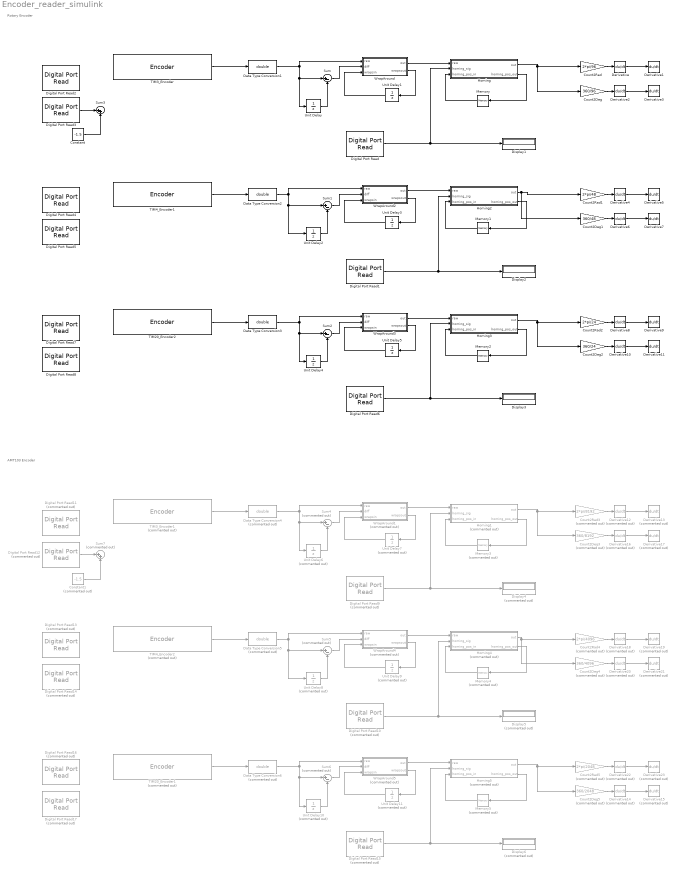
== matlab function Encoder_reader_simulink/Homing ==
function [out,homing_pos_out]= fcn(raw, homing_sig,homing_pos_in)

if homing_sig == 1
    homing_pos_out = raw;
    out = 0;
else
    homing_pos_out = homing_pos_in;
    out = raw - homing_pos_in;
end

== matlab function Encoder_reader_simulink/WrapAround1 ==
function [out,wrapsout] = fcn(raw, diff, wrapsin)

capcity = 61439;

if diff >= capcity/2 %max
    out = -raw+(wrapsin+1)*capcity;
    wrapsout = wrapsin-1;
elseif diff <= -capcity/2 %min
    out = raw+(wrapsin+1)*capcity;
    wrapsout = wrapsin+1;
else
    out = raw+wrapsin*capcity;
    wrapsout = wrapsin;

end

== matlab function Encoder_reader_simulink/WrapAround4 ==
function [out,wrapsout] = fcn(raw, diff, wrapsin)

capcity = 61439;

if diff >= capcity/2 %max
    out = -raw+(wrapsin+1)*capcity;
    wrapsout = wrapsin-1;
elseif diff <= -capcity/2 %min
    out = raw+(wrapsin+1)*capcity;
    wrapsout = wrapsin+1;
else
    out = raw+wrapsin*capcity;
    wrapsout = wrapsin;

end

== matlab function Encoder_reader_simulink/WrapAround5 ==
function [out,wrapsout] = fcn(raw, diff, wrapsin)

capcity = 61439;

if diff >= capcity/2 %max
    out = -raw+(wrapsin+1)*capcity;
    wrapsout = wrapsin-1;
elseif diff <= -capcity/2 %min
    out = raw+(wrapsin+1)*capcity;
    wrapsout = wrapsin+1;
else
    out = raw+wrapsin*capcity;
    wrapsout = wrapsin;

end

== matlab function Encoder_reader_simulink/WrapAround ==
function [out,wrapsout] = fcn(raw, diff, wrapsin)

capcity = 61439;

if diff >= capcity/2 %max
    out = -raw+(wrapsin+1)*capcity;
    wrapsout = wrapsin-1;
elseif diff <= -capcity/2 %min
    out = raw+(wrapsin+1)*capcity;
    wrapsout = wrapsin+1;
else
    out = raw+wrapsin*capcity;
    wrapsout = wrapsin;

end

== matlab function Encoder_reader_simulink/Homing2 ==
function [out,homing_pos_out]= fcn(raw, homing_sig,homing_pos_in)

if homing_sig == 1
    homing_pos_out = raw;
    out = 0;
else
    homing_pos_out = homing_pos_in;
    out = raw - homing_pos_in;
end

== matlab function Encoder_reader_simulink/WrapAround2 ==
function [out,wrapsout] = fcn(raw, diff, wrapsin)

capcity = 61439;

if diff >= capcity/2 %max
    out = -raw+(wrapsin+1)*capcity;
    wrapsout = wrapsin-1;
elseif diff <= -capcity/2 %min
    out = raw+(wrapsin+1)*capcity;
    wrapsout = wrapsin+1;
else
    out = raw+wrapsin*capcity;
    wrapsout = wrapsin;

end

== matlab function Encoder_reader_simulink/Homing3 ==
function [out,homing_pos_out]= fcn(raw, homing_sig,homing_pos_in)

if homing_sig == 1
    homing_pos_out = raw;
    out = 0;
else
    homing_pos_out = homing_pos_in;
    out = raw - homing_pos_in;
end

== matlab function Encoder_reader_simulink/WrapAround3 ==
function [out,wrapsout] = fcn(raw, diff, wrapsin)

capcity = 61439;

if diff >= capcity/2 %max
    out = -raw+(wrapsin+1)*capcity;
    wrapsout = wrapsin-1;
elseif diff <= -capcity/2 %min
    out = raw+(wrapsin+1)*capcity;
    wrapsout = wrapsin+1;
else
    out = raw+wrapsin*capcity;
    wrapsout = wrapsin;

end

== matlab function Encoder_reader_simulink/Homing1 ==
function [out,homing_pos_out]= fcn(raw, homing_sig,homing_pos_in)

if homing_sig == 1
    homing_pos_out = raw;
    out = 0;
else
    homing_pos_out = homing_pos_in;
    out = raw - homing_pos_in;
end

== matlab function Encoder_reader_simulink/Homing4 ==
function [out,homing_pos_out]= fcn(raw, homing_sig,homing_pos_in)

if homing_sig == 1
    homing_pos_out = raw;
    out = 0;
else
    homing_pos_out = homing_pos_in;
    out = raw - homing_pos_in;
end

== matlab function Encoder_reader_simulink/Homing5 ==
function [out,homing_pos_out]= fcn(raw, homing_sig,homing_pos_in)

if homing_sig == 1
    homing_pos_out = raw;
    out = 0;
else
    homing_pos_out = homing_pos_in;
    out = raw - homing_pos_in;
end

/*
 * Academic License - for use in teaching, academic research, and meeting
 * course requirements at degree granting institutions only.  Not for
 * government, commercial, or other organizational use.
 *
 * File: Encoder_reader_simulink.c
 *
 * Code generated for Simulink model 'Encoder_reader_simulink'.
 *
 * Model version                  : 2.6
 * Simulink Coder version         : 25.1 (R2025a) 21-Nov-2024
 * C/C++ source code generated on : Tue Oct 14 00:03:16 2025
 *
 * Target selection: ert.tlc
 * Embedded hardware selection: ARM Compatible->ARM Cortex-M
 * Code generation objectives: Unspecified
 * Validation result: Not run
 */

#include "Encoder_reader_simulink.h"
#include "rtwtypes.h"
#include "Encoder_reader_simulink_types.h"
#include "Encoder_reader_simulink_private.h"
#include "stm_timer_ll.h"

/* Named constants for MATLAB Function: '<Root>/Homing' */
#define Encoder_reader_simul_CALL_EVENT (-1)

/* Named constants for MATLAB Function: '<Root>/WrapAround' */
#define Encoder_reader_sim_CALL_EVENT_e (-1)

/* Block signals (default storage) */
B_Encoder_reader_simulink_T Encoder_reader_simulink_B;

/* Block states (default storage) */
DW_Encoder_reader_simulink_T Encoder_reader_simulink_DW;

/* Real-time model */
static RT_MODEL_Encoder_reader_simul_T Encoder_reader_simulink_M_;
RT_MODEL_Encoder_reader_simul_T *const Encoder_reader_simulink_M =
  &Encoder_reader_simulink_M_;

/* Forward declaration for local functions */
static void Encoder_read_SystemCore_setup_j(stm32cube_blocks_EncoderBlock_T *obj);
static void Encoder_rea_SystemCore_setup_j2(stm32cube_blocks_EncoderBlock_T *obj);
static void Encoder_reader_SystemCore_setup(stm32cube_blocks_EncoderBlock_T *obj);

/* System initialize for atomic system: */
void Encoder_re_DigitalPortRead_Init(DW_DigitalPortRead_Encoder_re_T *localDW)
{
  /* Start for MATLABSystem: '<S17>/Digital Port Read' */
  localDW->obj.matlabCodegenIsDeleted = false;
  localDW->objisempty = true;
  localDW->obj.isInitialized = 1;
  localDW->obj.isSetupComplete = true;
}

/* Output and update for atomic system: */
void Encoder_reader__DigitalPortRead(B_DigitalPortRead_Encoder_rea_T *localB)
{
  uint32_T pinReadLoc;

  /* MATLABSystem: '<S17>/Digital Port Read' */
  pinReadLoc = LL_GPIO_ReadInputPort(GPIOC);

  /* MATLABSystem: '<S17>/Digital Port Read' */
  localB->DigitalPortRead = ((pinReadLoc & 8192U) != 0U);
}

/* Termination for atomic system: */
void Encoder_re_DigitalPortRead_Term(DW_DigitalPortRead_Encoder_re_T *localDW)
{
  /* Terminate for MATLABSystem: '<S17>/Digital Port Read' */
  if (!localDW->obj.matlabCodegenIsDeleted) {
    localDW->obj.matlabCodegenIsDeleted = true;
  }

  /* End of Terminate for MATLABSystem: '<S17>/Digital Port Read' */
}

/*
 * System initialize for atomic system:
 *    '<Root>/Homing'
 *    '<Root>/Homing2'
 *    '<Root>/Homing3'
 */
void Encoder_reader_simu_Homing_Init(DW_Homing_Encoder_reader_simu_T *localDW)
{
  localDW->sfEvent = Encoder_reader_simul_CALL_EVENT;
}

/*
 * Output and update for atomic system:
 *    '<Root>/Homing'
 *    '<Root>/Homing2'
 *    '<Root>/Homing3'
 */
void Encoder_reader_simulink_Homing(real_T rtu_raw, boolean_T rtu_homing_sig,
  real_T rtu_homing_pos_in, real_T *rty_out, real_T *rty_homing_pos_out,
  DW_Homing_Encoder_reader_simu_T *localDW)
{
  localDW->sfEvent = Encoder_reader_simul_CALL_EVENT;
  if (rtu_homing_sig) {
    *rty_homing_pos_out = rtu_raw;
    *rty_out = 0.0;
  } else {
    *rty_homing_pos_out = rtu_homing_pos_in;
    *rty_out = rtu_raw - rtu_homing_pos_in;
  }
}

/*
 * System initialize for atomic system:
 *    '<Root>/WrapAround'
 *    '<Root>/WrapAround2'
 *    '<Root>/WrapAround3'
 */
void Encoder_reader__WrapAround_Init(DW_WrapAround_Encoder_reader__T *localDW)
{
  localDW->sfEvent = Encoder_reader_sim_CALL_EVENT_e;
}

/*
 * Output and update for atomic system:
 *    '<Root>/WrapAround'
 *    '<Root>/WrapAround2'
 *    '<Root>/WrapAround3'
 */
void Encoder_reader_simul_WrapAround(real_T rtu_raw, real_T rtu_diff, real_T
  rtu_wrapsin, real_T *rty_out, real_T *rty_wrapsout,
  DW_WrapAround_Encoder_reader__T *localDW)
{
  localDW->sfEvent = Encoder_reader_sim_CALL_EVENT_e;
  if (rtu_diff >= 30719.5) {
    *rty_out = (rtu_wrapsin + 1.0) * 61439.0 - rtu_raw;
    *rty_wrapsout = rtu_wrapsin - 1.0;
  } else if (rtu_diff <= -30719.5) {
    *rty_out = (rtu_wrapsin + 1.0) * 61439.0 + rtu_raw;
    *rty_wrapsout = rtu_wrapsin + 1.0;
  } else {
    *rty_out = rtu_wrapsin * 61439.0 + rtu_raw;
    *rty_wrapsout = rtu_wrapsin;
  }
}

static void Encoder_read_SystemCore_setup_j(stm32cube_blocks_EncoderBlock_T *obj)
{
  uint8_T ChannelInfo;
  TIM_Type_T b;
  boolean_T isSlaveModeTriggerEnabled;

  /* Start for MATLABSystem: '<Root>/TIM3_Encoder' */
  obj->isInitialized = 1;
  b.PeripheralPtr = TIM3;
  b.isCenterAlignedMode = false;

  /* Start for MATLABSystem: '<Root>/TIM3_Encoder' */
  b.repetitionCounter = 0U;
  obj->TimerHandle = Timer_Handle_Init(&b);
  enableTimerInterrupts(obj->TimerHandle, 0);
  ChannelInfo = ENABLE_CH;

  /* Start for MATLABSystem: '<Root>/TIM3_Encoder' */
  enableTimerChannel1(obj->TimerHandle, ChannelInfo);
  enableTimerChannel2(obj->TimerHandle, ChannelInfo);
  isSlaveModeTriggerEnabled = isSlaveTriggerModeEnabled(obj->TimerHandle);
  if (!isSlaveModeTriggerEnabled) {
    /* Start for MATLABSystem: '<Root>/TIM3_Encoder' */
    enableCounter(obj->TimerHandle, false);
  }

  obj->isSetupComplete = true;
}

static void Encoder_rea_SystemCore_setup_j2(stm32cube_blocks_EncoderBlock_T *obj)
{
  uint8_T ChannelInfo;
  TIM_Type_T b;
  boolean_T isSlaveModeTriggerEnabled;

  /* Start for MATLABSystem: '<Root>/TIM4_Encoder1' */
  obj->isInitialized = 1;
  b.PeripheralPtr = TIM4;
  b.isCenterAlignedMode = false;

  /* Start for MATLABSystem: '<Root>/TIM4_Encoder1' */
  b.repetitionCounter = 0U;
  obj->TimerHandle = Timer_Handle_Init(&b);
  enableTimerInterrupts(obj->TimerHandle, 0);
  ChannelInfo = ENABLE_CH;

  /* Start for MATLABSystem: '<Root>/TIM4_Encoder1' */
  enableTimerChannel1(obj->TimerHandle, ChannelInfo);
  enableTimerChannel2(obj->TimerHandle, ChannelInfo);
  isSlaveModeTriggerEnabled = isSlaveTriggerModeEnabled(obj->TimerHandle);
  if (!isSlaveModeTriggerEnabled) {
    /* Start for MATLABSystem: '<Root>/TIM4_Encoder1' */
    enableCounter(obj->TimerHandle, false);
  }

  obj->isSetupComplete = true;
}

static void Encoder_reader_SystemCore_setup(stm32cube_blocks_EncoderBlock_T *obj)
{
  uint8_T ChannelInfo;
  TIM_Type_T b;
  boolean_T isSlaveModeTriggerEnabled;

  /* Start for MATLABSystem: '<Root>/TIM20_Encoder2' */
  obj->isInitialized = 1;
  b.PeripheralPtr = TIM20;
  b.isCenterAlignedMode = false;

  /* Start for MATLABSystem: '<Root>/TIM20_Encoder2' */
  b.repetitionCounter = 0U;
  obj->TimerHandle = Timer_Handle_Init(&b);
  enableTimerInterrupts(obj->TimerHandle, 0);
  ChannelInfo = ENABLE_CH;

  /* Start for MATLABSystem: '<Root>/TIM20_Encoder2' */
  enableTimerChannel1(obj->TimerHandle, ChannelInfo);
  enableTimerChannel2(obj->TimerHandle, ChannelInfo);
  isSlaveModeTriggerEnabled = isSlaveTriggerModeEnabled(obj->TimerHandle);
  if (!isSlaveModeTriggerEnabled) {
    /* Start for MATLABSystem: '<Root>/TIM20_Encoder2' */
    enableCounter(obj->TimerHandle, false);
  }

  obj->isSetupComplete = true;
}

/* Model step function */
void Encoder_reader_simulink_step(void)
{
  {
    real_T out_b;
    real_T out_d;
    real_T *lastU;
    uint32_T pinReadLoc;

    /* MATLABSystem: '<S23>/Digital Port Read' */
    pinReadLoc = LL_GPIO_ReadInputPort(GPIOA);

    /* Sum: '<Root>/Sum3' incorporates:
     *  MATLABSystem: '<S23>/Digital Port Read'
     * */
    Encoder_reader_simulink_B.Sum3 = (real_T)((pinReadLoc & 64U) != 0U) - 1.5;
    Encoder_reader__DigitalPortRead(&Encoder_reader_simulink_B.DigitalPortRead);

    /* MATLABSystem: '<Root>/TIM3_Encoder' */
    Encoder_reader_simulink_B.TIM3_Encoder = getTimerCounterValueForG4
      (Encoder_reader_simulink_DW.obj_pe.TimerHandle, false, NULL);

    /* DataTypeConversion: '<Root>/Data Type Conversion1' */
    Encoder_reader_simulink_B.DataTypeConversion1 =
      Encoder_reader_simulink_B.TIM3_Encoder;

    /* MATLAB Function: '<Root>/WrapAround' incorporates:
     *  Sum: '<Root>/Sum'
     *  UnitDelay: '<Root>/Unit Delay'
     *  UnitDelay: '<Root>/Unit Delay1'
     */
    Encoder_reader_simul_WrapAround
      (Encoder_reader_simulink_B.DataTypeConversion1,
       Encoder_reader_simulink_B.DataTypeConversion1 -
       Encoder_reader_simulink_DW.UnitDelay_DSTATE,
       Encoder_reader_simulink_DW.UnitDelay1_DSTATE, &out_d,
       &Encoder_reader_simulink_B.wrapsout_d,
       &Encoder_reader_simulink_DW.sf_WrapAround);

    /* MATLAB Function: '<Root>/Homing' incorporates:
     *  Memory: '<Root>/Memory'
     */
    Encoder_reader_simulink_Homing(out_d,
      Encoder_reader_simulink_B.DigitalPortRead.DigitalPortRead,
      Encoder_reader_simulink_DW.Memory_PreviousInput,
      &Encoder_reader_simulink_B.out_m,
      &Encoder_reader_simulink_B.homing_pos_out_g4,
      &Encoder_reader_simulink_DW.sf_Homing);

    /* Gain: '<Root>/Count2Deg' */
    Encoder_reader_simulink_B.Count2Deg = 3.75 * Encoder_reader_simulink_B.out_m;

    /* Derivative: '<Root>/Derivative2' incorporates:
     *  Derivative: '<Root>/Derivative'
     *  Derivative: '<Root>/Derivative1'
     *  Derivative: '<Root>/Derivative10'
     *  Derivative: '<Root>/Derivative11'
     *  Derivative: '<Root>/Derivative3'
     *  Derivative: '<Root>/Derivative4'
     *  Derivative: '<Root>/Derivative5'
     *  Derivative: '<Root>/Derivative6'
     *  Derivative: '<Root>/Derivative7'
     *  Derivative: '<Root>/Derivative8'
     *  Derivative: '<Root>/Derivative9'
     */
    out_d = Encoder_reader_simulink_M->Timing.t[0];
    if ((Encoder_reader_simulink_DW.TimeStampA >= out_d) &&
        (Encoder_reader_simulink_DW.TimeStampB >= out_d)) {
      /* Derivative: '<Root>/Derivative2' */
      Encoder_reader_simulink_B.Derivative2 = 0.0;
    } else {
      out_b = Encoder_reader_simulink_DW.TimeStampA;
      lastU = &Encoder_reader_simulink_DW.LastUAtTimeA;
      if (Encoder_reader_simulink_DW.TimeStampA <
          Encoder_reader_simulink_DW.TimeStampB) {
        if (Encoder_reader_simulink_DW.TimeStampB < out_d) {
          out_b = Encoder_reader_simulink_DW.TimeStampB;
          lastU = &Encoder_reader_simulink_DW.LastUAtTimeB;
        }
      } else if (Encoder_reader_simulink_DW.TimeStampA >= out_d) {
        out_b = Encoder_reader_simulink_DW.TimeStampB;
        lastU = &Encoder_reader_simulink_DW.LastUAtTimeB;
      }

      /* Derivative: '<Root>/Derivative2' */
      Encoder_reader_simulink_B.Derivative2 =
        (Encoder_reader_simulink_B.Count2Deg - *lastU) / (out_d - out_b);
    }

    /* End of Derivative: '<Root>/Derivative2' */
    /* Derivative: '<Root>/Derivative3' */
    if ((Encoder_reader_simulink_DW.TimeStampA_b >= out_d) &&
        (Encoder_reader_simulink_DW.TimeStampB_b >= out_d)) {
      /* Derivative: '<Root>/Derivative3' */
      Encoder_reader_simulink_B.Derivative3 = 0.0;
    } else {
      out_b = Encoder_reader_simulink_DW.TimeStampA_b;
      lastU = &Encoder_reader_simulink_DW.LastUAtTimeA_d;
      if (Encoder_reader_simulink_DW.TimeStampA_b <
          Encoder_reader_simulink_DW.TimeStampB_b) {
        if (Encoder_reader_simulink_DW.TimeStampB_b < out_d) {
          out_b = Encoder_reader_simulink_DW.TimeStampB_b;
          lastU = &Encoder_reader_simulink_DW.LastUAtTimeB_l;
        }
      } else if (Encoder_reader_simulink_DW.TimeStampA_b >= out_d) {
        out_b = Encoder_reader_simulink_DW.TimeStampB_b;
        lastU = &Encoder_reader_simulink_DW.LastUAtTimeB_l;
      }

      /* Derivative: '<Root>/Derivative3' */
      Encoder_reader_simulink_B.Derivative3 =
        (Encoder_reader_simulink_B.Derivative2 - *lastU) / (out_d - out_b);
    }

    /* Gain: '<Root>/Count2Rad' */
    Encoder_reader_simulink_B.Count2Rad = 0.065449846949787352 *
      Encoder_reader_simulink_B.out_m;

    /* Derivative: '<Root>/Derivative' */
    if ((Encoder_reader_simulink_DW.TimeStampA_o >= out_d) &&
        (Encoder_reader_simulink_DW.TimeStampB_l >= out_d)) {
      /* Derivative: '<Root>/Derivative' */
      Encoder_reader_simulink_B.Derivative = 0.0;
    } else {
      out_b = Encoder_reader_simulink_DW.TimeStampA_o;
      lastU = &Encoder_reader_simulink_DW.LastUAtTimeA_e;
      if (Encoder_reader_simulink_DW.TimeStampA_o <
          Encoder_reader_simulink_DW.TimeStampB_l) {
        if (Encoder_reader_simulink_DW.TimeStampB_l < out_d) {
          out_b = Encoder_reader_simulink_DW.TimeStampB_l;
          lastU = &Encoder_reader_simulink_DW.LastUAtTimeB_h;
        }
      } else if (Encoder_reader_simulink_DW.TimeStampA_o >= out_d) {
        out_b = Encoder_reader_simulink_DW.TimeStampB_l;
        lastU = &Encoder_reader_simulink_DW.LastUAtTimeB_h;
      }

      /* Derivative: '<Root>/Derivative' */
      Encoder_reader_simulink_B.Derivative =
        (Encoder_reader_simulink_B.Count2Rad - *lastU) / (out_d - out_b);
    }

    /* Derivative: '<Root>/Derivative1' */
    if ((Encoder_reader_simulink_DW.TimeStampA_p >= out_d) &&
        (Encoder_reader_simulink_DW.TimeStampB_n >= out_d)) {
      /* Derivative: '<Root>/Derivative1' */
      Encoder_reader_simulink_B.Derivative1 = 0.0;
    } else {
      out_b = Encoder_reader_simulink_DW.TimeStampA_p;
      lastU = &Encoder_reader_simulink_DW.LastUAtTimeA_g;
      if (Encoder_reader_simulink_DW.TimeStampA_p <
          Encoder_reader_simulink_DW.TimeStampB_n) {
        if (Encoder_reader_simulink_DW.TimeStampB_n < out_d) {
          out_b = Encoder_reader_simulink_DW.TimeStampB_n;
          lastU = &Encoder_reader_simulink_DW.LastUAtTimeB_c;
        }
      } else if (Encoder_reader_simulink_DW.TimeStampA_p >= out_d) {
        out_b = Encoder_reader_simulink_DW.TimeStampB_n;
        lastU = &Encoder_reader_simulink_DW.LastUAtTimeB_c;
      }

      /* Derivative: '<Root>/Derivative1' */
      Encoder_reader_simulink_B.Derivative1 =
        (Encoder_reader_simulink_B.Derivative - *lastU) / (out_d - out_b);
    }

    Encoder_reader__DigitalPortRead(&Encoder_reader_simulink_B.DigitalPortRead_l);

    /* MATLABSystem: '<Root>/TIM4_Encoder1' */
    Encoder_reader_simulink_B.TIM4_Encoder1 = getTimerCounterValueForG4
      (Encoder_reader_simulink_DW.obj_ng.TimerHandle, false, NULL);

    /* DataTypeConversion: '<Root>/Data Type Conversion2' */
    Encoder_reader_simulink_B.DataTypeConversion2 =
      Encoder_reader_simulink_B.TIM4_Encoder1;

    /* MATLAB Function: '<Root>/WrapAround2' incorporates:
     *  Sum: '<Root>/Sum1'
     *  UnitDelay: '<Root>/Unit Delay2'
     *  UnitDelay: '<Root>/Unit Delay3'
     */
    Encoder_reader_simul_WrapAround
      (Encoder_reader_simulink_B.DataTypeConversion2,
       Encoder_reader_simulink_B.DataTypeConversion2 -
       Encoder_reader_simulink_DW.UnitDelay2_DSTATE,
       Encoder_reader_simulink_DW.UnitDelay3_DSTATE, &out_b,
       &Encoder_reader_simulink_B.wrapsout_h,
       &Encoder_reader_simulink_DW.sf_WrapAround2);

    /* MATLAB Function: '<Root>/Homing2' incorporates:
     *  Memory: '<Root>/Memory1'
     */
    Encoder_reader_simulink_Homing(out_b,
      Encoder_reader_simulink_B.DigitalPortRead_l.DigitalPortRead,
      Encoder_reader_simulink_DW.Memory1_PreviousInput,
      &Encoder_reader_simulink_B.out_j,
      &Encoder_reader_simulink_B.homing_pos_out_g,
      &Encoder_reader_simulink_DW.sf_Homing2);

    /* Gain: '<Root>/Count2Deg1' */
    Encoder_reader_simulink_B.Count2Deg1 = 7.5 * Encoder_reader_simulink_B.out_j;

    /* Derivative: '<Root>/Derivative6' */
    if ((Encoder_reader_simulink_DW.TimeStampA_k >= out_d) &&
        (Encoder_reader_simulink_DW.TimeStampB_k >= out_d)) {
      /* Derivative: '<Root>/Derivative6' */
      Encoder_reader_simulink_B.Derivative6 = 0.0;
    } else {
      out_b = Encoder_reader_simulink_DW.TimeStampA_k;
      lastU = &Encoder_reader_simulink_DW.LastUAtTimeA_h;
      if (Encoder_reader_simulink_DW.TimeStampA_k <
          Encoder_reader_simulink_DW.TimeStampB_k) {
        if (Encoder_reader_simulink_DW.TimeStampB_k < out_d) {
          out_b = Encoder_reader_simulink_DW.TimeStampB_k;
          lastU = &Encoder_reader_simulink_DW.LastUAtTimeB_i;
        }
      } else if (Encoder_reader_simulink_DW.TimeStampA_k >= out_d) {
        out_b = Encoder_reader_simulink_DW.TimeStampB_k;
        lastU = &Encoder_reader_simulink_DW.LastUAtTimeB_i;
      }

      /* Derivative: '<Root>/Derivative6' */
      Encoder_reader_simulink_B.Derivative6 =
        (Encoder_reader_simulink_B.Count2Deg1 - *lastU) / (out_d - out_b);
    }

    /* Derivative: '<Root>/Derivative7' */
    if ((Encoder_reader_simulink_DW.TimeStampA_p0 >= out_d) &&
        (Encoder_reader_simulink_DW.TimeStampB_d >= out_d)) {
      /* Derivative: '<Root>/Derivative7' */
      Encoder_reader_simulink_B.Derivative7 = 0.0;
    } else {
      out_b = Encoder_reader_simulink_DW.TimeStampA_p0;
      lastU = &Encoder_reader_simulink_DW.LastUAtTimeA_p;
      if (Encoder_reader_simulink_DW.TimeStampA_p0 <
          Encoder_reader_simulink_DW.TimeStampB_d) {
        if (Encoder_reader_simulink_DW.TimeStampB_d < out_d) {
          out_b = Encoder_reader_simulink_DW.TimeStampB_d;
          lastU = &Encoder_reader_simulink_DW.LastUAtTimeB_ck;
        }
      } else if (Encoder_reader_simulink_DW.TimeStampA_p0 >= out_d) {
        out_b = Encoder_reader_simulink_DW.TimeStampB_d;
        lastU = &Encoder_reader_simulink_DW.LastUAtTimeB_ck;
      }

      /* Derivative: '<Root>/Derivative7' */
      Encoder_reader_simulink_B.Derivative7 =
        (Encoder_reader_simulink_B.Derivative6 - *lastU) / (out_d - out_b);
    }

    /* Gain: '<Root>/Count2Rad1' */
    Encoder_reader_simulink_B.Count2Rad1 = 0.1308996938995747 *
      Encoder_reader_simulink_B.out_j;

    /* Derivative: '<Root>/Derivative4' */
    if ((Encoder_reader_simulink_DW.TimeStampA_f >= out_d) &&
        (Encoder_reader_simulink_DW.TimeStampB_dj >= out_d)) {
      /* Derivative: '<Root>/Derivative4' */
      Encoder_reader_simulink_B.Derivative4 = 0.0;
    } else {
      out_b = Encoder_reader_simulink_DW.TimeStampA_f;
      lastU = &Encoder_reader_simulink_DW.LastUAtTimeA_l;
      if (Encoder_reader_simulink_DW.TimeStampA_f <
          Encoder_reader_simulink_DW.TimeStampB_dj) {
        if (Encoder_reader_simulink_DW.TimeStampB_dj < out_d) {
          out_b = Encoder_reader_simulink_DW.TimeStampB_dj;
          lastU = &Encoder_reader_simulink_DW.LastUAtTimeB_lu;
        }
      } else if (Encoder_reader_simulink_DW.TimeStampA_f >= out_d) {
        out_b = Encoder_reader_simulink_DW.TimeStampB_dj;
        lastU = &Encoder_reader_simulink_DW.LastUAtTimeB_lu;
      }

      /* Derivative: '<Root>/Derivative4' */
      Encoder_reader_simulink_B.Derivative4 =
        (Encoder_reader_simulink_B.Count2Rad1 - *lastU) / (out_d - out_b);
    }

    /* Derivative: '<Root>/Derivative5' */
    if ((Encoder_reader_simulink_DW.TimeStampA_pr >= out_d) &&
        (Encoder_reader_simulink_DW.TimeStampB_p >= out_d)) {
      /* Derivative: '<Root>/Derivative5' */
      Encoder_reader_simulink_B.Derivative5 = 0.0;
    } else {
      out_b = Encoder_reader_simulink_DW.TimeStampA_pr;
      lastU = &Encoder_reader_simulink_DW.LastUAtTimeA_gx;
      if (Encoder_reader_simulink_DW.TimeStampA_pr <
          Encoder_reader_simulink_DW.TimeStampB_p) {
        if (Encoder_reader_simulink_DW.TimeStampB_p < out_d) {
          out_b = Encoder_reader_simulink_DW.TimeStampB_p;
          lastU = &Encoder_reader_simulink_DW.LastUAtTimeB_j;
        }
      } else if (Encoder_reader_simulink_DW.TimeStampA_pr >= out_d) {
        out_b = Encoder_reader_simulink_DW.TimeStampB_p;
        lastU = &Encoder_reader_simulink_DW.LastUAtTimeB_j;
      }

      /* Derivative: '<Root>/Derivative5' */
      Encoder_reader_simulink_B.Derivative5 =
        (Encoder_reader_simulink_B.Derivative4 - *lastU) / (out_d - out_b);
    }

    Encoder_reader__DigitalPortRead
      (&Encoder_reader_simulink_B.DigitalPortRead_dw);

    /* MATLABSystem: '<Root>/TIM20_Encoder2' */
    Encoder_reader_simulink_B.TIM20_Encoder2 = getTimerCounterValueForG4
      (Encoder_reader_simulink_DW.obj_dx.TimerHandle, false, NULL);

    /* DataTypeConversion: '<Root>/Data Type Conversion3' */
    Encoder_reader_simulink_B.DataTypeConversion3 =
      Encoder_reader_simulink_B.TIM20_Encoder2;

    /* MATLAB Function: '<Root>/WrapAround3' incorporates:
     *  Sum: '<Root>/Sum2'
     *  UnitDelay: '<Root>/Unit Delay4'
     *  UnitDelay: '<Root>/Unit Delay5'
     */
    Encoder_reader_simul_WrapAround
      (Encoder_reader_simulink_B.DataTypeConversion3,
       Encoder_reader_simulink_B.DataTypeConversion3 -
       Encoder_reader_simulink_DW.UnitDelay4_DSTATE,
       Encoder_reader_simulink_DW.UnitDelay5_DSTATE, &out_b,
       &Encoder_reader_simulink_B.wrapsout,
       &Encoder_reader_simulink_DW.sf_WrapAround3);

    /* MATLAB Function: '<Root>/Homing3' incorporates:
     *  Memory: '<Root>/Memory2'
     */
    Encoder_reader_simulink_Homing(out_b,
      Encoder_reader_simulink_B.DigitalPortRead_dw.DigitalPortRead,
      Encoder_reader_simulink_DW.Memory2_PreviousInput,
      &Encoder_reader_simulink_B.out_e,
      &Encoder_reader_simulink_B.homing_pos_out,
      &Encoder_reader_simulink_DW.sf_Homing3);

    /* Gain: '<Root>/Count2Deg2' */
    Encoder_reader_simulink_B.Count2Deg2 = 15.0 *
      Encoder_reader_simulink_B.out_e;

    /* Derivative: '<Root>/Derivative10' */
    if ((Encoder_reader_simulink_DW.TimeStampA_n >= out_d) &&
        (Encoder_reader_simulink_DW.TimeStampB_bx >= out_d)) {
      /* Derivative: '<Root>/Derivative10' */
      Encoder_reader_simulink_B.Derivative10 = 0.0;
    } else {
      out_b = Encoder_reader_simulink_DW.TimeStampA_n;
      lastU = &Encoder_reader_simulink_DW.LastUAtTimeA_j;
      if (Encoder_reader_simulink_DW.TimeStampA_n <
          Encoder_reader_simulink_DW.TimeStampB_bx) {
        if (Encoder_reader_simulink_DW.TimeStampB_bx < out_d) {
          out_b = Encoder_reader_simulink_DW.TimeStampB_bx;
          lastU = &Encoder_reader_simulink_DW.LastUAtTimeB_m;
        }
      } else if (Encoder_reader_simulink_DW.TimeStampA_n >= out_d) {
        out_b = Encoder_reader_simulink_DW.TimeStampB_bx;
        lastU = &Encoder_reader_simulink_DW.LastUAtTimeB_m;
      }

      /* Derivative: '<Root>/Derivative10' */
      Encoder_reader_simulink_B.Derivative10 =
        (Encoder_reader_simulink_B.Count2Deg2 - *lastU) / (out_d - out_b);
    }

    /* Derivative: '<Root>/Derivative11' */
    if ((Encoder_reader_simulink_DW.TimeStampA_m >= out_d) &&
        (Encoder_reader_simulink_DW.TimeStampB_ne >= out_d)) {
      /* Derivative: '<Root>/Derivative11' */
      Encoder_reader_simulink_B.Derivative11 = 0.0;
    } else {
      out_b = Encoder_reader_simulink_DW.TimeStampA_m;
      lastU = &Encoder_reader_simulink_DW.LastUAtTimeA_gb;
      if (Encoder_reader_simulink_DW.TimeStampA_m <
          Encoder_reader_simulink_DW.TimeStampB_ne) {
        if (Encoder_reader_simulink_DW.TimeStampB_ne < out_d) {
          out_b = Encoder_reader_simulink_DW.TimeStampB_ne;
          lastU = &Encoder_reader_simulink_DW.LastUAtTimeB_b;
        }
      } else if (Encoder_reader_simulink_DW.TimeStampA_m >= out_d) {
        out_b = Encoder_reader_simulink_DW.TimeStampB_ne;
        lastU = &Encoder_reader_simulink_DW.LastUAtTimeB_b;
      }

      /* Derivative: '<Root>/Derivative11' */
      Encoder_reader_simulink_B.Derivative11 =
        (Encoder_reader_simulink_B.Derivative10 - *lastU) / (out_d - out_b);
    }

    /* Gain: '<Root>/Count2Rad2' */
    Encoder_reader_simulink_B.Count2Rad2 = 0.26179938779914941 *
      Encoder_reader_simulink_B.out_e;

    /* Derivative: '<Root>/Derivative8' */
    if ((Encoder_reader_simulink_DW.TimeStampA_ne >= out_d) &&
        (Encoder_reader_simulink_DW.TimeStampB_ly >= out_d)) {
      /* Derivative: '<Root>/Derivative8' */
      Encoder_reader_simulink_B.Derivative8 = 0.0;
    } else {
      out_b = Encoder_reader_simulink_DW.TimeStampA_ne;
      lastU = &Encoder_reader_simulink_DW.LastUAtTimeA_c;
      if (Encoder_reader_simulink_DW.TimeStampA_ne <
          Encoder_reader_simulink_DW.TimeStampB_ly) {
        if (Encoder_reader_simulink_DW.TimeStampB_ly < out_d) {
          out_b = Encoder_reader_simulink_DW.TimeStampB_ly;
          lastU = &Encoder_reader_simulink_DW.LastUAtTimeB_d;
        }
      } else if (Encoder_reader_simulink_DW.TimeStampA_ne >= out_d) {
        out_b = Encoder_reader_simulink_DW.TimeStampB_ly;
        lastU = &Encoder_reader_simulink_DW.LastUAtTimeB_d;
      }

      /* Derivative: '<Root>/Derivative8' */
      Encoder_reader_simulink_B.Derivative8 =
        (Encoder_reader_simulink_B.Count2Rad2 - *lastU) / (out_d - out_b);
    }

    /* Derivative: '<Root>/Derivative9' */
    if ((Encoder_reader_simulink_DW.TimeStampA_d >= out_d) &&
        (Encoder_reader_simulink_DW.TimeStampB_p1 >= out_d)) {
      /* Derivative: '<Root>/Derivative9' */
      Encoder_reader_simulink_B.Derivative9 = 0.0;
    } else {
      out_b = Encoder_reader_simulink_DW.TimeStampA_d;
      lastU = &Encoder_reader_simulink_DW.LastUAtTimeA_ha;
      if (Encoder_reader_simulink_DW.TimeStampA_d <
          Encoder_reader_simulink_DW.TimeStampB_p1) {
        if (Encoder_reader_simulink_DW.TimeStampB_p1 < out_d) {
          out_b = Encoder_reader_simulink_DW.TimeStampB_p1;
          lastU = &Encoder_reader_simulink_DW.LastUAtTimeB_p;
        }
      } else if (Encoder_reader_simulink_DW.TimeStampA_d >= out_d) {
        out_b = Encoder_reader_simulink_DW.TimeStampB_p1;
        lastU = &Encoder_reader_simulink_DW.LastUAtTimeB_p;
      }

      /* Derivative: '<Root>/Derivative9' */
      Encoder_reader_simulink_B.Derivative9 =
        (Encoder_reader_simulink_B.Derivative8 - *lastU) / (out_d - out_b);
    }

    /* MATLABSystem: '<S21>/Digital Port Read' */
    pinReadLoc = LL_GPIO_ReadInputPort(GPIOA);

    /* MATLABSystem: '<S21>/Digital Port Read' */
    Encoder_reader_simulink_B.DigitalPortRead_op = ((pinReadLoc & 16U) != 0U);

    /* MATLABSystem: '<S25>/Digital Port Read' */
    pinReadLoc = LL_GPIO_ReadInputPort(GPIOA);

    /* MATLABSystem: '<S25>/Digital Port Read' */
    Encoder_reader_simulink_B.DigitalPortRead_g = ((pinReadLoc & 2048U) != 0U);

    /* MATLABSystem: '<S27>/Digital Port Read' */
    pinReadLoc = LL_GPIO_ReadInputPort(GPIOA);

    /* MATLABSystem: '<S27>/Digital Port Read' */
    Encoder_reader_simulink_B.DigitalPortRead_b = ((pinReadLoc & 4096U) != 0U);

    /* MATLABSystem: '<S31>/Digital Port Read' */
    pinReadLoc = LL_GPIO_ReadInputPort(GPIOC);

    /* MATLABSystem: '<S31>/Digital Port Read' */
    Encoder_reader_simulink_B.DigitalPortRead_o = ((pinReadLoc & 8U) != 0U);

    /* MATLABSystem: '<S33>/Digital Port Read' */
    pinReadLoc = LL_GPIO_ReadInputPort(GPIOB);

    /* MATLABSystem: '<S33>/Digital Port Read' */
    Encoder_reader_simulink_B.DigitalPortRead_m = ((pinReadLoc & 4U) != 0U);
  }

  {
    real_T *lastU;

    /* Update for UnitDelay: '<Root>/Unit Delay' */
    Encoder_reader_simulink_DW.UnitDelay_DSTATE =
      Encoder_reader_simulink_B.DataTypeConversion1;

    /* Update for UnitDelay: '<Root>/Unit Delay1' */
    Encoder_reader_simulink_DW.UnitDelay1_DSTATE =
      Encoder_reader_simulink_B.wrapsout_d;

    /* Update for Memory: '<Root>/Memory' */
    Encoder_reader_simulink_DW.Memory_PreviousInput =
      Encoder_reader_simulink_B.homing_pos_out_g4;

    /* Update for Derivative: '<Root>/Derivative2' */
    if (Encoder_reader_simulink_DW.TimeStampA == (rtInf)) {
      Encoder_reader_simulink_DW.TimeStampA =
        Encoder_reader_simulink_M->Timing.t[0];
      lastU = &Encoder_reader_simulink_DW.LastUAtTimeA;
    } else if (Encoder_reader_simulink_DW.TimeStampB == (rtInf)) {
      Encoder_reader_simulink_DW.TimeStampB =
        Encoder_reader_simulink_M->Timing.t[0];
      lastU = &Encoder_reader_simulink_DW.LastUAtTimeB;
    } else if (Encoder_reader_simulink_DW.TimeStampA <
               Encoder_reader_simulink_DW.TimeStampB) {
      Encoder_reader_simulink_DW.TimeStampA =
        Encoder_reader_simulink_M->Timing.t[0];
      lastU = &Encoder_reader_simulink_DW.LastUAtTimeA;
    } else {
      Encoder_reader_simulink_DW.TimeStampB =
        Encoder_reader_simulink_M->Timing.t[0];
      lastU = &Encoder_reader_simulink_DW.LastUAtTimeB;
    }

    *lastU = Encoder_reader_simulink_B.Count2Deg;

    /* End of Update for Derivative: '<Root>/Derivative2' */

    /* Update for Derivative: '<Root>/Derivative3' */
    if (Encoder_reader_simulink_DW.TimeStampA_b == (rtInf)) {
      Encoder_reader_simulink_DW.TimeStampA_b =
        Encoder_reader_simulink_M->Timing.t[0];
      lastU = &Encoder_reader_simulink_DW.LastUAtTimeA_d;
    } else if (Encoder_reader_simulink_DW.TimeStampB_b == (rtInf)) {
      Encoder_reader_simulink_DW.TimeStampB_b =
        Encoder_reader_simulink_M->Timing.t[0];
      lastU = &Encoder_reader_simulink_DW.LastUAtTimeB_l;
    } else if (Encoder_reader_simulink_DW.TimeStampA_b <
               Encoder_reader_simulink_DW.TimeStampB_b) {
      Encoder_reader_simulink_DW.TimeStampA_b =
        Encoder_reader_simulink_M->Timing.t[0];
      lastU = &Encoder_reader_simulink_DW.LastUAtTimeA_d;
    } else {
      Encoder_reader_simulink_DW.TimeStampB_b =
        Encoder_reader_simulink_M->Timing.t[0];
      lastU = &Encoder_reader_simulink_DW.LastUAtTimeB_l;
    }

    *lastU = Encoder_reader_simulink_B.Derivative2;

    /* End of Update for Derivative: '<Root>/Derivative3' */

    /* Update for Derivative: '<Root>/Derivative' */
    if (Encoder_reader_simulink_DW.TimeStampA_o == (rtInf)) {
      Encoder_reader_simulink_DW.TimeStampA_o =
        Encoder_reader_simulink_M->Timing.t[0];
      lastU = &Encoder_reader_simulink_DW.LastUAtTimeA_e;
    } else if (Encoder_reader_simulink_DW.TimeStampB_l == (rtInf)) {
      Encoder_reader_simulink_DW.TimeStampB_l =
        Encoder_reader_simulink_M->Timing.t[0];
      lastU = &Encoder_reader_simulink_DW.LastUAtTimeB_h;
    } else if (Encoder_reader_simulink_DW.TimeStampA_o <
               Encoder_reader_simulink_DW.TimeStampB_l) {
      Encoder_reader_simulink_DW.TimeStampA_o =
        Encoder_reader_simulink_M->Timing.t[0];
      lastU = &Encoder_reader_simulink_DW.LastUAtTimeA_e;
    } else {
      Encoder_reader_simulink_DW.TimeStampB_l =
        Encoder_reader_simulink_M->Timing.t[0];
      lastU = &Encoder_reader_simulink_DW.LastUAtTimeB_h;
    }

    *lastU = Encoder_reader_simulink_B.Count2Rad;

    /* End of Update for Derivative: '<Root>/Derivative' */

    /* Update for Derivative: '<Root>/Derivative1' */
    if (Encoder_reader_simulink_DW.TimeStampA_p == (rtInf)) {
      Encoder_reader_simulink_DW.TimeStampA_p =
        Encoder_reader_simulink_M->Timing.t[0];
      lastU = &Encoder_reader_simulink_DW.LastUAtTimeA_g;
    } else if (Encoder_reader_simulink_DW.TimeStampB_n == (rtInf)) {
      Encoder_reader_simulink_DW.TimeStampB_n =
        Encoder_reader_simulink_M->Timing.t[0];
      lastU = &Encoder_reader_simulink_DW.LastUAtTimeB_c;
    } else if (Encoder_reader_simulink_DW.TimeStampA_p <
               Encoder_reader_simulink_DW.TimeStampB_n) {
      Encoder_reader_simulink_DW.TimeStampA_p =
        Encoder_reader_simulink_M->Timing.t[0];
      lastU = &Encoder_reader_simulink_DW.LastUAtTimeA_g;
    } else {
      Encoder_reader_simulink_DW.TimeStampB_n =
        Encoder_reader_simulink_M->Timing.t[0];
      lastU = &Encoder_reader_simulink_DW.LastUAtTimeB_c;
    }

    *lastU = Encoder_reader_simulink_B.Derivative;

    /* End of Update for Derivative: '<Root>/Derivative1' */

    /* Update for UnitDelay: '<Root>/Unit Delay2' */
    Encoder_reader_simulink_DW.UnitDelay2_DSTATE =
      Encoder_reader_simulink_B.DataTypeConversion2;

    /* Update for UnitDelay: '<Root>/Unit Delay3' */
    Encoder_reader_simulink_DW.UnitDelay3_DSTATE =
      Encoder_reader_simulink_B.wrapsout_h;

    /* Update for Memory: '<Root>/Memory1' */
    Encoder_reader_simulink_DW.Memory1_PreviousInput =
      Encoder_reader_simulink_B.homing_pos_out_g;

    /* Update for Derivative: '<Root>/Derivative6' */
    if (Encoder_reader_simulink_DW.TimeStampA_k == (rtInf)) {
      Encoder_reader_simulink_DW.TimeStampA_k =
        Encoder_reader_simulink_M->Timing.t[0];
      lastU = &Encoder_reader_simulink_DW.LastUAtTimeA_h;
    } else if (Encoder_reader_simulink_DW.TimeStampB_k == (rtInf)) {
      Encoder_reader_simulink_DW.TimeStampB_k =
        Encoder_reader_simulink_M->Timing.t[0];
      lastU = &Encoder_reader_simulink_DW.LastUAtTimeB_i;
    } else if (Encoder_reader_simulink_DW.TimeStampA_k <
               Encoder_reader_simulink_DW.TimeStampB_k) {
      Encoder_reader_simulink_DW.TimeStampA_k =
        Encoder_reader_simulink_M->Timing.t[0];
      lastU = &Encoder_reader_simulink_DW.LastUAtTimeA_h;
    } else {
      Encoder_reader_simulink_DW.TimeStampB_k =
        Encoder_reader_simulink_M->Timing.t[0];
      lastU = &Encoder_reader_simulink_DW.LastUAtTimeB_i;
    }

    *lastU = Encoder_reader_simulink_B.Count2Deg1;

    /* End of Update for Derivative: '<Root>/Derivative6' */

    /* Update for Derivative: '<Root>/Derivative7' */
    if (Encoder_reader_simulink_DW.TimeStampA_p0 == (rtInf)) {
      Encoder_reader_simulink_DW.TimeStampA_p0 =
        Encoder_reader_simulink_M->Timing.t[0];
      lastU = &Encoder_reader_simulink_DW.LastUAtTimeA_p;
    } else if (Encoder_reader_simulink_DW.TimeStampB_d == (rtInf)) {
      Encoder_reader_simulink_DW.TimeStampB_d =
        Encoder_reader_simulink_M->Timing.t[0];
      lastU = &Encoder_reader_simulink_DW.LastUAtTimeB_ck;
    } else if (Encoder_reader_simulink_DW.TimeStampA_p0 <
               Encoder_reader_simulink_DW.TimeStampB_d) {
      Encoder_reader_simulink_DW.TimeStampA_p0 =
        Encoder_reader_simulink_M->Timing.t[0];
      lastU = &Encoder_reader_simulink_DW.LastUAtTimeA_p;
    } else {
      Encoder_reader_simulink_DW.TimeStampB_d =
        Encoder_reader_simulink_M->Timing.t[0];
      lastU = &Encoder_reader_simulink_DW.LastUAtTimeB_ck;
    }

    *lastU = Encoder_reader_simulink_B.Derivative6;

    /* End of Update for Derivative: '<Root>/Derivative7' */

    /* Update for Derivative: '<Root>/Derivative4' */
    if (Encoder_reader_simulink_DW.TimeStampA_f == (rtInf)) {
      Encoder_reader_simulink_DW.TimeStampA_f =
        Encoder_reader_simulink_M->Timing.t[0];
      lastU = &Encoder_reader_simulink_DW.LastUAtTimeA_l;
    } else if (Encoder_reader_simulink_DW.TimeStampB_dj == (rtInf)) {
      Encoder_reader_simulink_DW.TimeStampB_dj =
        Encoder_reader_simulink_M->Timing.t[0];
      lastU = &Encoder_reader_simulink_DW.LastUAtTimeB_lu;
    } else if (Encoder_reader_simulink_DW.TimeStampA_f <
               Encoder_reader_simulink_DW.TimeStampB_dj) {
      Encoder_reader_simulink_DW.TimeStampA_f =
        Encoder_reader_simulink_M->Timing.t[0];
      lastU = &Encoder_reader_simulink_DW.LastUAtTimeA_l;
    } else {
      Encoder_reader_simulink_DW.TimeStampB_dj =
        Encoder_reader_simulink_M->Timing.t[0];
      lastU = &Encoder_reader_simulink_DW.LastUAtTimeB_lu;
    }

    *lastU = Encoder_reader_simulink_B.Count2Rad1;

    /* End of Update for Derivative: '<Root>/Derivative4' */

    /* Update for Derivative: '<Root>/Derivative5' */
    if (Encoder_reader_simulink_DW.TimeStampA_pr == (rtInf)) {
      Encoder_reader_simulink_DW.TimeStampA_pr =
        Encoder_reader_simulink_M->Timing.t[0];
      lastU = &Encoder_reader_simulink_DW.LastUAtTimeA_gx;
    } else if (Encoder_reader_simulink_DW.TimeStampB_p == (rtInf)) {
      Encoder_reader_simulink_DW.TimeStampB_p =
        Encoder_reader_simulink_M->Timing.t[0];
      lastU = &Encoder_reader_simulink_DW.LastUAtTimeB_j;
    } else if (Encoder_reader_simulink_DW.TimeStampA_pr <
               Encoder_reader_simulink_DW.TimeStampB_p) {
      Encoder_reader_simulink_DW.TimeStampA_pr =
        Encoder_reader_simulink_M->Timing.t[0];
      lastU = &Encoder_reader_simulink_DW.LastUAtTimeA_gx;
    } else {
      Encoder_reader_simulink_DW.TimeStampB_p =
        Encoder_reader_simulink_M->Timing.t[0];
      lastU = &Encoder_reader_simulink_DW.LastUAtTimeB_j;
    }

    *lastU = Encoder_reader_simulink_B.Derivative4;

    /* End of Update for Derivative: '<Root>/Derivative5' */

    /* Update for UnitDelay: '<Root>/Unit Delay4' */
    Encoder_reader_simulink_DW.UnitDelay4_DSTATE =
      Encoder_reader_simulink_B.DataTypeConversion3;

    /* Update for UnitDelay: '<Root>/Unit Delay5' */
    Encoder_reader_simulink_DW.UnitDelay5_DSTATE =
      Encoder_reader_simulink_B.wrapsout;

    /* Update for Memory: '<Root>/Memory2' */
    Encoder_reader_simulink_DW.Memory2_PreviousInput =
      Encoder_reader_simulink_B.homing_pos_out;

    /* Update for Derivative: '<Root>/Derivative10' */
    if (Encoder_reader_simulink_DW.TimeStampA_n == (rtInf)) {
      Encoder_reader_simulink_DW.TimeStampA_n =
        Encoder_reader_simulink_M->Timing.t[0];
      lastU = &Encoder_reader_simulink_DW.LastUAtTimeA_j;
    } else if (Encoder_reader_simulink_DW.TimeStampB_bx == (rtInf)) {
      Encoder_reader_simulink_DW.TimeStampB_bx =
        Encoder_reader_simulink_M->Timing.t[0];
      lastU = &Encoder_reader_simulink_DW.LastUAtTimeB_m;
    } else if (Encoder_reader_simulink_DW.TimeStampA_n <
               Encoder_reader_simulink_DW.TimeStampB_bx) {
      Encoder_reader_simulink_DW.TimeStampA_n =
        Encoder_reader_simulink_M->Timing.t[0];
      lastU = &Encoder_reader_simulink_DW.LastUAtTimeA_j;
    } else {
      Encoder_reader_simulink_DW.TimeStampB_bx =
        Encoder_reader_simulink_M->Timing.t[0];
      lastU = &Encoder_reader_simulink_DW.LastUAtTimeB_m;
    }

    *lastU = Encoder_reader_simulink_B.Count2Deg2;

    /* End of Update for Derivative: '<Root>/Derivative10' */

    /* Update for Derivative: '<Root>/Derivative11' */
    if (Encoder_reader_simulink_DW.TimeStampA_m == (rtInf)) {
      Encoder_reader_simulink_DW.TimeStampA_m =
        Encoder_reader_simulink_M->Timing.t[0];
      lastU = &Encoder_reader_simulink_DW.LastUAtTimeA_gb;
    } else if (Encoder_reader_simulink_DW.TimeStampB_ne == (rtInf)) {
      Encoder_reader_simulink_DW.TimeStampB_ne =
        Encoder_reader_simulink_M->Timing.t[0];
      lastU = &Encoder_reader_simulink_DW.LastUAtTimeB_b;
    } else if (Encoder_reader_simulink_DW.TimeStampA_m <
               Encoder_reader_simulink_DW.TimeStampB_ne) {
      Encoder_reader_simulink_DW.TimeStampA_m =
        Encoder_reader_simulink_M->Timing.t[0];
      lastU = &Encoder_reader_simulink_DW.LastUAtTimeA_gb;
    } else {
      Encoder_reader_simulink_DW.TimeStampB_ne =
        Encoder_reader_simulink_M->Timing.t[0];
      lastU = &Encoder_reader_simulink_DW.LastUAtTimeB_b;
    }

    *lastU = Encoder_reader_simulink_B.Derivative10;

    /* End of Update for Derivative: '<Root>/Derivative11' */

    /* Update for Derivative: '<Root>/Derivative8' */
    if (Encoder_reader_simulink_DW.TimeStampA_ne == (rtInf)) {
      Encoder_reader_simulink_DW.TimeStampA_ne =
        Encoder_reader_simulink_M->Timing.t[0];
      lastU = &Encoder_reader_simulink_DW.LastUAtTimeA_c;
    } else if (Encoder_reader_simulink_DW.TimeStampB_ly == (rtInf)) {
      Encoder_reader_simulink_DW.TimeStampB_ly =
        Encoder_reader_simulink_M->Timing.t[0];
      lastU = &Encoder_reader_simulink_DW.LastUAtTimeB_d;
    } else if (Encoder_reader_simulink_DW.TimeStampA_ne <
               Encoder_reader_simulink_DW.TimeStampB_ly) {
      Encoder_reader_simulink_DW.TimeStampA_ne =
        Encoder_reader_simulink_M->Timing.t[0];
      lastU = &Encoder_reader_simulink_DW.LastUAtTimeA_c;
    } else {
      Encoder_reader_simulink_DW.TimeStampB_ly =
        Encoder_reader_simulink_M->Timing.t[0];
      lastU = &Encoder_reader_simulink_DW.LastUAtTimeB_d;
    }

    *lastU = Encoder_reader_simulink_B.Count2Rad2;

    /* End of Update for Derivative: '<Root>/Derivative8' */

    /* Update for Derivative: '<Root>/Derivative9' */
    if (Encoder_reader_simulink_DW.TimeStampA_d == (rtInf)) {
      Encoder_reader_simulink_DW.TimeStampA_d =
        Encoder_reader_simulink_M->Timing.t[0];
      lastU = &Encoder_reader_simulink_DW.LastUAtTimeA_ha;
    } else if (Encoder_reader_simulink_DW.TimeStampB_p1 == (rtInf)) {
      Encoder_reader_simulink_DW.TimeStampB_p1 =
        Encoder_reader_simulink_M->Timing.t[0];
      lastU = &Encoder_reader_simulink_DW.LastUAtTimeB_p;
    } else if (Encoder_reader_simulink_DW.TimeStampA_d <
               Encoder_reader_simulink_DW.TimeStampB_p1) {
      Encoder_reader_simulink_DW.TimeStampA_d =
        Encoder_reader_simulink_M->Timing.t[0];
      lastU = &Encoder_reader_simulink_DW.LastUAtTimeA_ha;
    } else {
      Encoder_reader_simulink_DW.TimeStampB_p1 =
        Encoder_reader_simulink_M->Timing.t[0];
      lastU = &Encoder_reader_simulink_DW.LastUAtTimeB_p;
    }

    *lastU = Encoder_reader_simulink_B.Derivative8;

    /* End of Update for Derivative: '<Root>/Derivative9' */
  }

  {                                    /* Sample time: [0.01s, 0.0s] */
    extmodeErrorCode_T errorCode = EXTMODE_SUCCESS;
    extmodeSimulationTime_T extmodeTime = (extmodeSimulationTime_T)
      ((Encoder_reader_simulink_M->Timing.clockTick1) * 0.01);

    /* Trigger External Mode event */
    errorCode = extmodeEvent(1, extmodeTime);
    if (errorCode != EXTMODE_SUCCESS) {
      /* Code to handle External Mode event errors
         may be added here */
    }
  }

  /* Update absolute time for base rate */
  /* The "clockTick0" counts the number of times the code of this task has
   * been executed. The absolute time is the multiplication of "clockTick0"
   * and "Timing.stepSize0". Size of "clockTick0" ensures timer will not
   * overflow during the application lifespan selected.
   */
  Encoder_reader_simulink_M->Timing.t[0] =
    ((time_T)(++Encoder_reader_simulink_M->Timing.clockTick0)) *
    Encoder_reader_simulink_M->Timing.stepSize0;

  {
    /* Update absolute timer for sample time: [0.01s, 0.0s] */
    /* The "clockTick1" counts the number of times the code of this task has
     * been executed. The resolution of this integer timer is 0.01, which is the step size
     * of the task. Size of "clockTick1" ensures timer will not overflow during the
     * application lifespan selected.
     */
    Encoder_reader_simulink_M->Timing.clockTick1++;
  }
}
